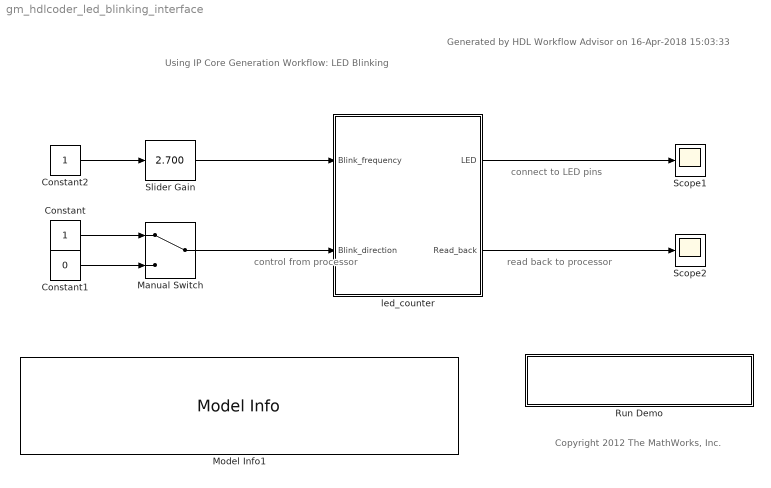
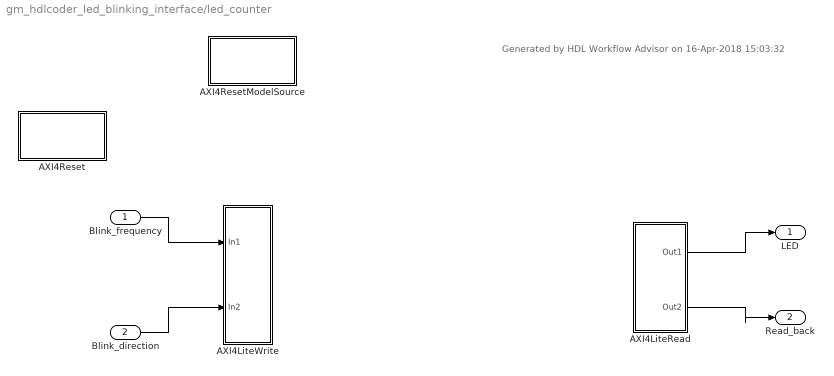
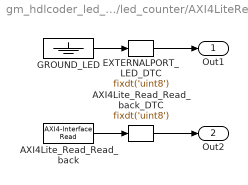
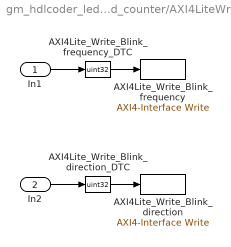
== system gm_hdlcoder_led_blinking_interface/Run Demo ==

== system gm_hdlcoder_led_blinking_interface/led_counter/AXI4Reset ==

== system gm_hdlcoder_led_blinking_interface/led_counter/AXI4ResetModelSource ==

/*
 * Academic License - for use in teaching, academic research, and meeting
 * course requirements at degree granting institutions only.  Not for
 * government, commercial, or other organizational use.
 *
 * File: gm_hdlcoder_led_blinking_interface.c
 *
 * Code generated for Simulink model 'gm_hdlcoder_led_blinking_interface'.
 *
 * Model version                  : 1.71
 * Simulink Coder version         : 8.12 (R2017a) 16-Feb-2017
 * C/C++ source code generated on : Thu May 03 10:04:16 2018
 *
 * Target selection: ert.tlc
 * Embedded hardware selection: ARM Compatible->ARM Cortex
 * Code generation objectives: Unspecified
 * Validation result: Not run
 */

#include "gm_hdlcoder_led_blinking_interface.h"
#include "gm_hdlcoder_led_blinking_interface_private.h"
#include "gm_hdlcoder_led_blinking_interface_dt.h"
#define gm_hdlcoder_l_RegisterOffset_he (256U)
#define gm_hdlcoder_le_RegisterOffset_h (260U)
#define gm_hdlcoder_led__RegisterOffset (264U)

/* user code (top of source file) */
/* System '<Root>/led_counter' */
#include "axi_lct.h"

/* Block signals (auto storage) */
B_gm_hdlcoder_led_blinking_in_T gm_hdlcoder_led_blinking_inte_B;

/* Block states (auto storage) */
DW_gm_hdlcoder_led_blinking_i_T gm_hdlcoder_led_blinking_int_DW;

/* Real-time model */
RT_MODEL_gm_hdlcoder_led_blin_T gm_hdlcoder_led_blinking_int_M_;
RT_MODEL_gm_hdlcoder_led_blin_T *const gm_hdlcoder_led_blinking_int_M =
  &gm_hdlcoder_led_blinking_int_M_;

/* Model step function */
void gm_hdlcoder_led_blinking_interface_step(void)
{
  AXI4_struct * p_state;
  uint32_T rtb_AXI4Lite_Write_Blink_freque;
  uint8_T rtb_SliderGain;
  boolean_T rtb_ManualSwitch;
  int32_T tmp;

  /* Gain: '<S2>/Slider Gain' incorporates:
   *  Constant: '<Root>/Constant2'
   */
  tmp = (int32_T)((uint32_T)gm_hdlcoder_led_blinking_inte_P.SliderGain_gain *
                  gm_hdlcoder_led_blinking_inte_P.Constant2_Value);
  if ((uint32_T)tmp > 15U) {
    tmp = 15;
  }

  rtb_SliderGain = (uint8_T)tmp;

  /* End of Gain: '<S2>/Slider Gain' */

  /* ManualSwitch: '<Root>/Manual Switch' incorporates:
   *  Constant: '<Root>/Constant'
   *  Constant: '<Root>/Constant1'
   */
  if (gm_hdlcoder_led_blinking_inte_P.ManualSwitch_CurrentSetting == 1) {
    rtb_ManualSwitch = gm_hdlcoder_led_blinking_inte_P.Constant_Value;
  } else {
    rtb_ManualSwitch = gm_hdlcoder_led_blinking_inte_P.Constant1_Value;
  }

  /* End of ManualSwitch: '<Root>/Manual Switch' */

  /* Outputs for Atomic SubSystem: '<Root>/led_counter' */

  /* DataTypeConversion: '<S5>/AXI4Lite_Write_Blink_frequency_DTC' */
  rtb_AXI4Lite_Write_Blink_freque = rtb_SliderGain;

  /* Start for MATLABSystem: '<S8>/AXI4-Interface Write' incorporates:
   *  MATLABSystem: '<S8>/AXI4-Interface Write'
   */
  p_state = (AXI4_struct *)(gm_hdlcoder_led_blinking_int_DW.obj_b.DeviceState);
  AXI4LITE_WRITE(p_state, &rtb_AXI4Lite_Write_Blink_freque,
                 gm_hdlcoder_l_RegisterOffset_he, 4U);

  /* DataTypeConversion: '<S5>/AXI4Lite_Write_Blink_direction_DTC' */
  rtb_AXI4Lite_Write_Blink_freque = rtb_ManualSwitch;

  /* Start for MATLABSystem: '<S7>/AXI4-Interface Write' incorporates:
   *  MATLABSystem: '<S7>/AXI4-Interface Write'
   */
  p_state = (AXI4_struct *)(gm_hdlcoder_led_blinking_int_DW.obj_k.DeviceState);
  AXI4LITE_WRITE(p_state, &rtb_AXI4Lite_Write_Blink_freque,
                 gm_hdlcoder_le_RegisterOffset_h, 4U);

  /* Start for MATLABSystem: '<S6>/AXI4-Interface Read' incorporates:
   *  MATLABSystem: '<S6>/AXI4-Interface Read'
   */
  p_state = (AXI4_struct *)(gm_hdlcoder_led_blinking_int_DW.obj.DeviceState);
  AXI4LITE_READ(p_state, &rtb_AXI4Lite_Write_Blink_freque,
                gm_hdlcoder_led__RegisterOffset, 4U);

  /* DataTypeConversion: '<S4>/AXI4Lite_Read_Read_back_DTC' incorporates:
   *  MATLABSystem: '<S6>/AXI4-Interface Read'
   */
  gm_hdlcoder_led_blinking_inte_B.AXI4Lite_Read_Read_back_DTC = (uint8_T)
    rtb_AXI4Lite_Write_Blink_freque;

  /* DataTypeConversion: '<S4>/EXTERNALPORT_LED_DTC' */
  gm_hdlcoder_led_blinking_inte_B.EXTERNALPORT_LED_DTC = 0U;

  /* End of Outputs for SubSystem: '<Root>/led_counter' */

  /* External mode */
  rtExtModeUploadCheckTrigger(1);

  {                                    /* Sample time: [0.001s, 0.0s] */
    rtExtModeUpload(0, gm_hdlcoder_led_blinking_int_M->Timing.taskTime0);
  }

  /* signal main to stop simulation */
  {                                    /* Sample time: [0.001s, 0.0s] */
    if ((rtmGetTFinal(gm_hdlcoder_led_blinking_int_M)!=-1) &&
        !((rtmGetTFinal(gm_hdlcoder_led_blinking_int_M)-
           gm_hdlcoder_led_blinking_int_M->Timing.taskTime0) >
          gm_hdlcoder_led_blinking_int_M->Timing.taskTime0 * (DBL_EPSILON))) {
      rtmSetErrorStatus(gm_hdlcoder_led_blinking_int_M, "Simulation finished");
    }

    if (rtmGetStopRequested(gm_hdlcoder_led_blinking_int_M)) {
      rtmSetErrorStatus(gm_hdlcoder_led_blinking_int_M, "Simulation finished");
    }
  }

  /* Update absolute time for base rate */
  /* The "clockTick0" counts the number of times the code of this task has
   * been executed. The absolute time is the multiplication of "clockTick0"
   * and "Timing.stepSize0". Size of "clockTick0" ensures timer will not
   * overflow during the application lifespan selected.
   */
  gm_hdlcoder_led_blinking_int_M->Timing.taskTime0 =
    (++gm_hdlcoder_led_blinking_int_M->Timing.clockTick0) *
    gm_hdlcoder_led_blinking_int_M->Timing.stepSize0;
}
